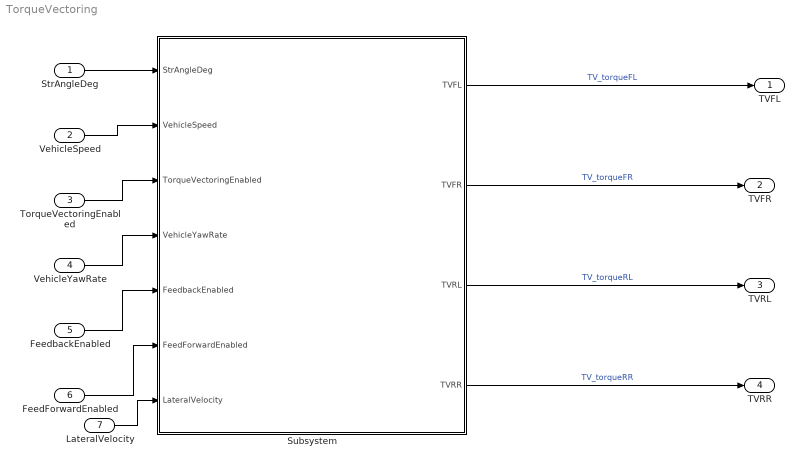
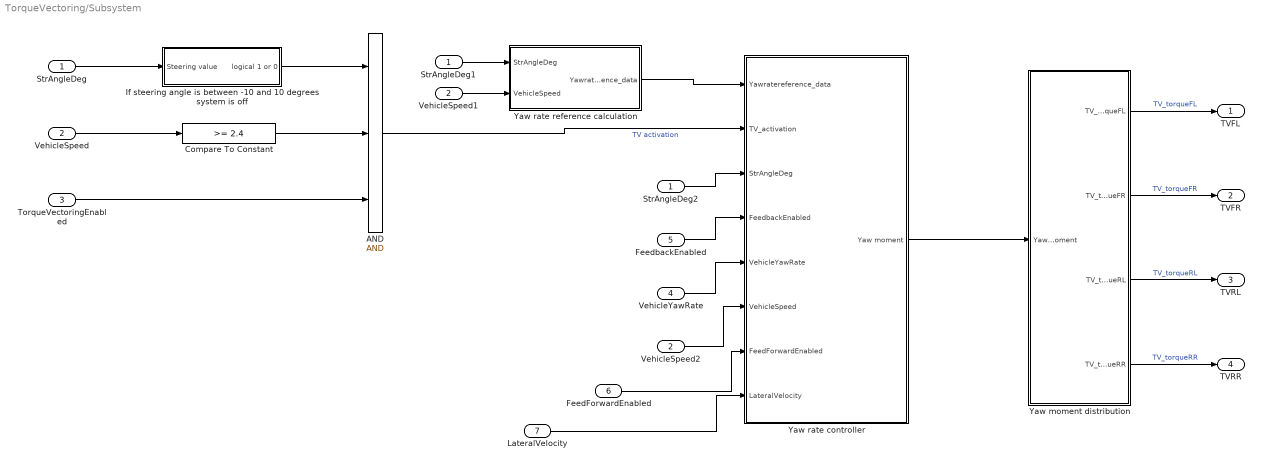
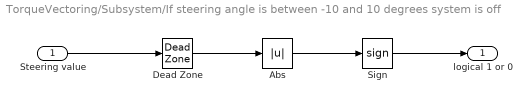
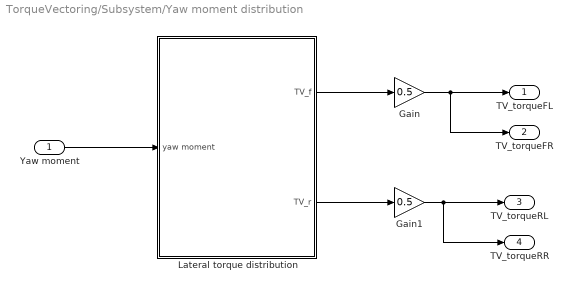
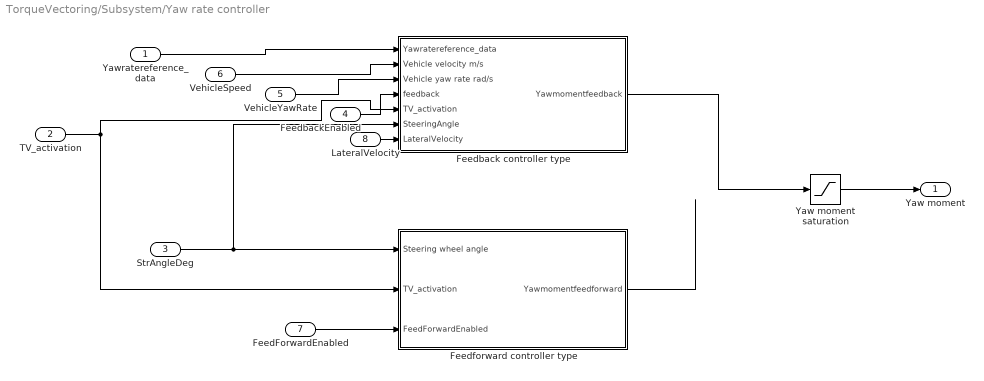
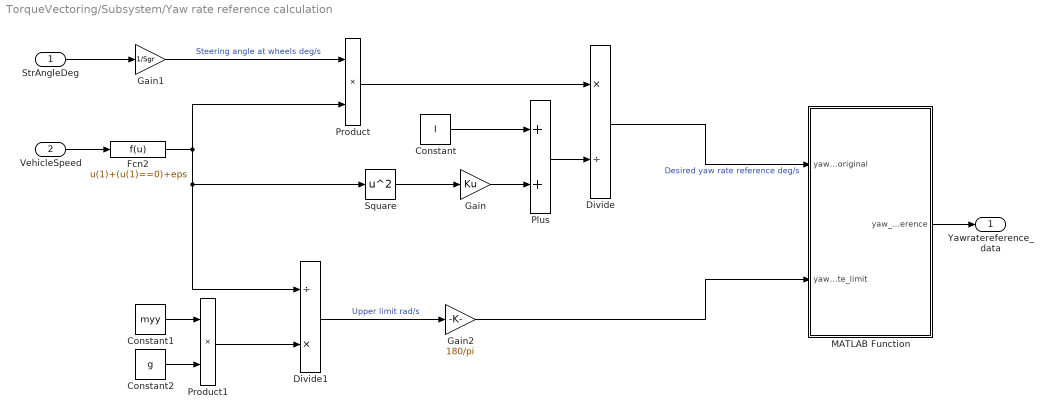
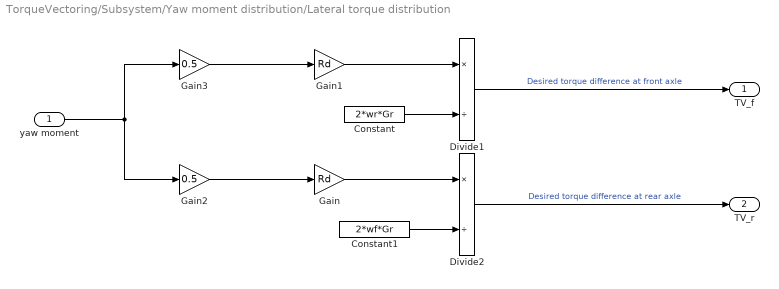
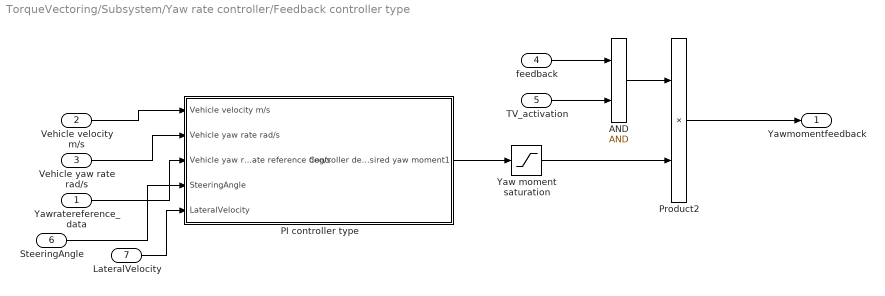
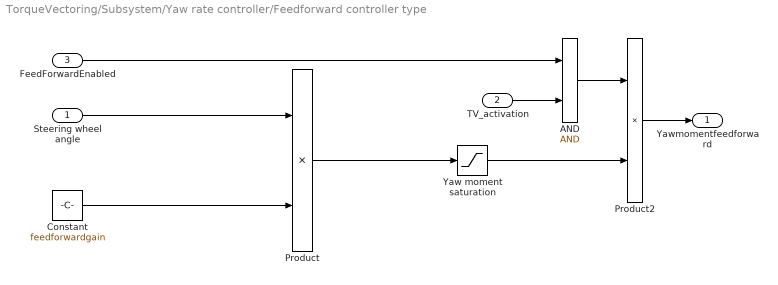
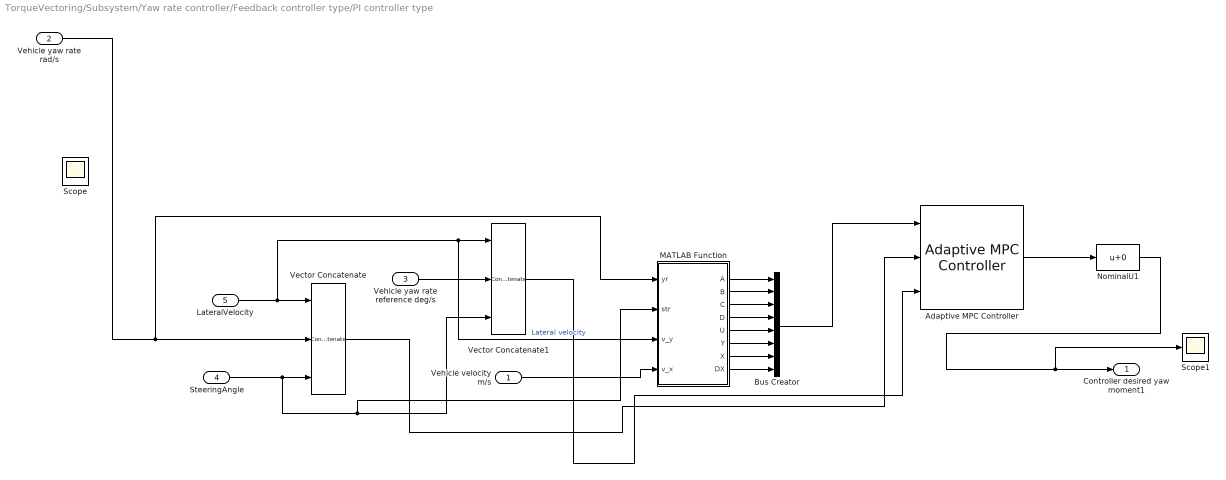
== matlab function TorqueVectoring/Subsystem/Yaw rate controller/Feedback controller type/PI controller type/MATLAB Function ==
function [A,B,C,D,U,Y,X,DX] = fcn(yr,str,v_y,v_x)

Cr = 1
Cf = 1
m = 200
Izz = 100
lf = 0.7650
lr = 0.7650


A = [-(Cr + Cf)/(m), (-v_x^2*m-Cf*lf + Cr*lr)/(m),Cf/m; (lr*Cr-lf*Cf)/(Izz), (lf^2*Cf-lr^2*Cr)/(Izz),lf*Cf/Izz;0,0,0];
B = [0; 1/Izz;0];
C = eye(3);
D = zeros([3,1]);
X = [v_y;yr;str];
Y = [v_y;yr;str];
U = [0];
%A= eye(3)+0.001*A;
%B=0.001*B;
%M=expm([A,B;zeros(1,4)]*0.001);
%A=M(1:3,1:3);
%B=M(1:3,4);
DX = A*X;

== matlab function TorqueVectoring/Subsystem/Yaw rate reference calculation/MATLAB Function ==
function yaw_rate_reference = fcn(yaw_rate_reference_original,yaw_rate_limit)

if abs(yaw_rate_reference_original) < yaw_rate_limit
    yaw_rate_reference = yaw_rate_reference_original ;
else 
    yaw_rate_reference = yaw_rate_limit*sign(yaw_rate_reference_original) ; 
end

/*
 * Sponsored License - for use in support of a program or activity
 * sponsored by MathWorks.  Not for government, commercial or other
 * non-sponsored organizational use.
 *
 * File: TorqueVectoring.c
 *
 * Code generated for Simulink model 'TorqueVectoring'.
 *
 * Model version                  : 1.0
 * Simulink Coder version         : 9.6 (R2021b) 14-May-2021
 * C/C++ source code generated on : Wed Mar 27 18:22:20 2024
 *
 * Target selection: ert.tlc
 * Embedded hardware selection: ARM Compatible->ARM Cortex-M
 * Code generation objectives:
 *    1. Execution efficiency
 *    2. RAM efficiency
 * Validation result: Not run
 */

#include "TorqueVectoring.h"

/* Named constants for MATLAB Function: '<S41>/FixedHorizonOptimizer' */
#define Wdu                            (0.010000000000000002)
#define Wu                             (0.0)
#define ny                             (3)
#define NumBitsPerChar                 8U

/* Block signals and states (default storage) */
DW rtDW;

/* External inputs (root inport signals with default storage) */
ExtU rtU;

/* External outputs (root outports fed by signals with default storage) */
ExtY rtY;

/* Real-time model */
static RT_MODEL rtM_;
RT_MODEL *const rtM = &rtM_;
extern real_T rt_powd_snf(real_T u0, real_T u1);

/* Forward declaration for local functions */
static void WtMult(real_T W, const real_T M[20], real_T WM[20]);
static int32_T xpotrf(real_T b_A[4]);
static void trisolve(const real_T b_A[4], real_T b_B[4]);
static void mpcblock_optimizer(const real_T rseq[30], const real_T vseq[11],
  const real_T x[6], real_T old_u, boolean_T iA, const real_T b_utarget[10],
  real_T b_uoff, const real_T b_A[36], const real_T Bu[66], const real_T Bv[66],
  const real_T b_C[18], const real_T Dv[33], real_T *u, real_T useq[11], real_T *
  status, boolean_T *iAout);
static real_T rtGetInf(void);
static real32_T rtGetInfF(void);
static real_T rtGetMinusInf(void);
static real32_T rtGetMinusInfF(void);
static real_T rtGetNaN(void);
static real32_T rtGetNaNF(void);
extern real_T rtInf;
extern real_T rtMinusInf;
extern real_T rtNaN;
extern real32_T rtInfF;
extern real32_T rtMinusInfF;
extern real32_T rtNaNF;
static void rt_InitInfAndNaN(size_t realSize);
static boolean_T rtIsInf(real_T value);
static boolean_T rtIsInfF(real32_T value);
static boolean_T rtIsNaN(real_T value);
static boolean_T rtIsNaNF(real32_T value);
typedef struct {
  struct {
    uint32_T wordH;
    uint32_T wordL;
  } words;
} BigEndianIEEEDouble;

typedef struct {
  struct {
    uint32_T wordL;
    uint32_T wordH;
  } words;
} LittleEndianIEEEDouble;

typedef struct {
  union {
    real32_T wordLreal;
    uint32_T wordLuint;
  } wordL;
} IEEESingle;

real_T rtInf;
real_T rtMinusInf;
real_T rtNaN;
real32_T rtInfF;
real32_T rtMinusInfF;
real32_T rtNaNF;

/*
 * Initialize rtInf needed by the generated code.
 * Inf is initialized as non-signaling. Assumes IEEE.
 */
static real_T rtGetInf(void)
{
  size_t bitsPerReal = sizeof(real_T) * (NumBitsPerChar);
  real_T inf = 0.0;
  if (bitsPerReal == 32U) {
    inf = rtGetInfF();
  } else {
    union {
      LittleEndianIEEEDouble bitVal;
      real_T fltVal;
    } tmpVal;

    tmpVal.bitVal.words.wordH = 0x7FF00000U;
    tmpVal.bitVal.words.wordL = 0x00000000U;
    inf = tmpVal.fltVal;
  }

  return inf;
}

/*
 * Initialize rtInfF needed by the generated code.
 * Inf is initialized as non-signaling. Assumes IEEE.
 */
static real32_T rtGetInfF(void)
{
  IEEESingle infF;
  infF.wordL.wordLuint = 0x7F800000U;
  return infF.wordL.wordLreal;
}

/*
 * Initialize rtMinusInf needed by the generated code.
 * Inf is initialized as non-signaling. Assumes IEEE.
 */
static real_T rtGetMinusInf(void)
{
  size_t bitsPerReal = sizeof(real_T) * (NumBitsPerChar);
  real_T minf = 0.0;
  if (bitsPerReal == 32U) {
    minf = rtGetMinusInfF();
  } else {
    union {
      LittleEndianIEEEDouble bitVal;
      real_T fltVal;
    } tmpVal;

    tmpVal.bitVal.words.wordH = 0xFFF00000U;
    tmpVal.bitVal.words.wordL = 0x00000000U;
    minf = tmpVal.fltVal;
  }

  return minf;
}

/*
 * Initialize rtMinusInfF needed by the generated code.
 * Inf is initialized as non-signaling. Assumes IEEE.
 */
static real32_T rtGetMinusInfF(void)
{
  IEEESingle minfF;
  minfF.wordL.wordLuint = 0xFF800000U;
  return minfF.wordL.wordLreal;
}

/*
 * Initialize rtNaN needed by the generated code.
 * NaN is initialized as non-signaling. Assumes IEEE.
 */
static real_T rtGetNaN(void)
{
  size_t bitsPerReal = sizeof(real_T) * (NumBitsPerChar);
  real_T nan = 0.0;
  if (bitsPerReal == 32U) {
    nan = rtGetNaNF();
  } else {
    union {
      LittleEndianIEEEDouble bitVal;
      real_T fltVal;
    } tmpVal;

    tmpVal.bitVal.words.wordH = 0xFFF80000U;
    tmpVal.bitVal.words.wordL = 0x00000000U;
    nan = tmpVal.fltVal;
  }

  return nan;
}

/*
 * Initialize rtNaNF needed by the generated code.
 * NaN is initialized as non-signaling. Assumes IEEE.
 */
static real32_T rtGetNaNF(void)
{
  IEEESingle nanF = { { 0.0F } };

  nanF.wordL.wordLuint = 0xFFC00000U;
  return nanF.wordL.wordLreal;
}

/*
 * Initialize the rtInf, rtMinusInf, and rtNaN needed by the
 * generated code. NaN is initialized as non-signaling. Assumes IEEE.
 */
static void rt_InitInfAndNaN(size_t realSize)
{
  (void) (realSize);
  rtNaN = rtGetNaN();
  rtNaNF = rtGetNaNF();
  rtInf = rtGetInf();
  rtInfF = rtGetInfF();
  rtMinusInf = rtGetMinusInf();
  rtMinusInfF = rtGetMinusInfF();
}

/* Test if value is infinite */
static boolean_T rtIsInf(real_T value)
{
  return (boolean_T)((value==rtInf || value==rtMinusInf) ? 1U : 0U);
}

/* Test if single-precision value is infinite */
static boolean_T rtIsInfF(real32_T value)
{
  return (boolean_T)(((value)==rtInfF || (value)==rtMinusInfF) ? 1U : 0U);
}

/* Test if value is not a number */
static boolean_T rtIsNaN(real_T value)
{
  boolean_T result = (boolean_T) 0;
  size_t bitsPerReal = sizeof(real_T) * (NumBitsPerChar);
  if (bitsPerReal == 32U) {
    result = rtIsNaNF((real32_T)value);
  } else {
    union {
      LittleEndianIEEEDouble bitVal;
      real_T fltVal;
    } tmpVal;

    tmpVal.fltVal = value;
    result = (boolean_T)((tmpVal.bitVal.words.wordH & 0x7FF00000) == 0x7FF00000 &&
                         ( (tmpVal.bitVal.words.wordH & 0x000FFFFF) != 0 ||
                          (tmpVal.bitVal.words.wordL != 0) ));
  }

  return result;
}

/* Test if single-precision value is not a number */
static boolean_T rtIsNaNF(real32_T value)
{
  IEEESingle tmp;
  tmp.wordL.wordLreal = value;
  return (boolean_T)( (tmp.wordL.wordLuint & 0x7F800000) == 0x7F800000 &&
                     (tmp.wordL.wordLuint & 0x007FFFFF) != 0 );
}

/* Function for MATLAB Function: '<S41>/FixedHorizonOptimizer' */
static void WtMult(real_T W, const real_T M[20], real_T WM[20])
{
  int32_T i;
  for (i = 0; i < 10; i++) {
    WM[i] = W * M[i];
    WM[i + 10] = M[i + 10] * W;
  }
}

/* Function for MATLAB Function: '<S41>/FixedHorizonOptimizer' */
static int32_T xpotrf(real_T b_A[4])
{
  int32_T info;
  int32_T ix;
  int32_T j;
  boolean_T exitg1;
  info = 0;
  j = 0;
  exitg1 = false;
  while ((!exitg1) && (j < 2)) {
    real_T ssq;
    int32_T idxAjj;
    idxAjj = (j << 1) + j;
    ssq = 0.0;
    if (j >= 1) {
      ssq = b_A[1] * b_A[1];
    }

    ssq = b_A[idxAjj] - ssq;
    if (ssq > 0.0) {
      ssq = sqrt(ssq);
      b_A[idxAjj] = ssq;
      if (j + 1 < 2) {
        ssq = 1.0 / ssq;
        for (ix = idxAjj + 1; ix < idxAjj + 2; ix++) {
          b_A[ix] *= ssq;
        }
      }

      j++;
    } else {
      b_A[idxAjj] = ssq;
      info = j + 1;
      exitg1 = true;
    }
  }

  return info;
}

real_T rt_powd_snf(real_T u0, real_T u1)
{
  real_T y;
  if (rtIsNaN(u0) || rtIsNaN(u1)) {
    y = (rtNaN);
  } else {
    real_T tmp;
    real_T tmp_0;
    tmp = fabs(u0);
    tmp_0 = fabs(u1);
    if (rtIsInf(u1)) {
      if (tmp == 1.0) {
        y = 1.0;
      } else if (tmp > 1.0) {
        if (u1 > 0.0) {
          y = (rtInf);
        } else {
          y = 0.0;
        }
      } else if (u1 > 0.0) {
        y = 0.0;
      } else {
        y = (rtInf);
      }
    } else if (tmp_0 == 0.0) {
      y = 1.0;
    } else if (tmp_0 == 1.0) {
      if (u1 > 0.0) {
        y = u0;
      } else {
        y = 1.0 / u0;
      }
    } else if (u1 == 2.0) {
      y = u0 * u0;
    } else if ((u1 == 0.5) && (u0 >= 0.0)) {
      y = sqrt(u0);
    } else if ((u0 < 0.0) && (u1 > floor(u1))) {
      y = (rtNaN);
    } else {
      y = pow(u0, u1);
    }
  }

  return y;
}

/* Function for MATLAB Function: '<S41>/FixedHorizonOptimizer' */
static void trisolve(const real_T b_A[4], real_T b_B[4])
{
  if (b_B[0] != 0.0) {
    b_B[0] /= b_A[0];
    b_B[1] -= b_B[0] * b_A[1];
  }

  if (b_B[1] != 0.0) {
    b_B[1] /= b_A[3];
  }

  if (b_B[2] != 0.0) {
    b_B[2] /= b_A[0];
    b_B[3] -= b_A[1] * b_B[2];
  }

  if (b_B[3] != 0.0) {
    b_B[3] /= b_A[3];
  }
}

/* Function for MATLAB Function: '<S41>/FixedHorizonOptimizer' */
static void mpcblock_optimizer(const real_T rseq[30], const real_T vseq[11],
  const real_T x[6], real_T old_u, boolean_T iA, const real_T b_utarget[10],
  real_T b_uoff, const real_T b_A[36], const real_T Bu[66], const real_T Bv[66],
  const real_T b_C[18], const real_T Dv[33], real_T *u, real_T useq[11], real_T *
  status, boolean_T *iAout)
{
  real_T c_Hv[330];
  real_T Su[300];
  real_T c_a[180];
  real_T WySuJm[60];
  real_T c_SuJm[60];
  real_T CA_0[33];
  real_T Sum_0[30];
  real_T b_a[30];
  real_T c_Kv[22];
  real_T I2Jm[20];
  real_T WuI2Jm[20];
  real_T tmp[20];
  real_T CA[18];
  real_T CA_1[18];
  real_T c_Kx[12];
  real_T c[4];
  real_T c_Linv[4];
  real_T c_SuJm_0[4];
  real_T Sum[3];
  real_T b_C_0[3];
  real_T b_a_0[2];
  real_T c_Ku1[2];
  real_T varargin_1[2];
  real_T normH;
  real_T s;
  int32_T CA_tmp;
  int32_T c_Hv_tmp;
  int32_T i;
  int32_T i_0;
  int32_T kidx;
  int16_T ixw;
  int8_T a[100];
  int8_T rows[3];
  static const int8_T c_A[100] = { 1, 1, 1, 1, 1, 1, 1, 1, 1, 1, 0, 1, 1, 1, 1,
    1, 1, 1, 1, 1, 0, 0, 1, 1, 1, 1, 1, 1, 1, 1, 0, 0, 0, 1, 1, 1, 1, 1, 1, 1, 0,
    0, 0, 0, 1, 1, 1, 1, 1, 1, 0, 0, 0, 0, 0, 1, 1, 1, 1, 1, 0, 0, 0, 0, 0, 0, 1,
    1, 1, 1, 0, 0, 0, 0, 0, 0, 0, 1, 1, 1, 0, 0, 0, 0, 0, 0, 0, 0, 1, 1, 0, 0, 0,
    0, 0, 0, 0, 0, 0, 1 };

  static const real_T b_b[20] = { 1.0, 0.0, 0.0, 0.0, 0.0, 0.0, 0.0, 0.0, 0.0,
    0.0, 0.0, 1.0, 0.0, 0.0, 0.0, 0.0, 0.0, 0.0, 0.0, 0.0 };

  static const int8_T W[3] = { 1, 0, 0 };

  static const int8_T c_0[20] = { 1, 0, 0, 1, 0, 0, 0, 0, 0, 0, 0, 0, 0, 0, 0, 0,
    0, 0, 0, 0 };

  boolean_T guard1 = false;
  memset(&useq[0], 0, 11U * sizeof(real_T));
  *iAout = false;
  for (i = 0; i < 3; i++) {
    Sum[i] = 0.0;
    b_C_0[i] = 0.0;
    for (c_Hv_tmp = 0; c_Hv_tmp < 6; c_Hv_tmp++) {
      CA_tmp = 3 * c_Hv_tmp + i;
      CA[CA_tmp] = 0.0;
      for (i_0 = 0; i_0 < 6; i_0++) {
        CA[CA_tmp] += b_C[3 * i_0 + i] * b_A[6 * c_Hv_tmp + i_0];
      }

      normH = b_C[CA_tmp];
      Sum[i] += normH * Bu[c_Hv_tmp];
      b_C_0[i] += normH * Bv[c_Hv_tmp];
    }

    c_Hv[i] = b_C_0[i];
    c_Hv[i + 30] = Dv[i];
  }

  for (i = 0; i < 9; i++) {
    c_Hv_tmp = (i + 2) * 30;
    c_Hv[c_Hv_tmp] = 0.0;
    c_Hv[c_Hv_tmp + 1] = 0.0;
    c_Hv[c_Hv_tmp + 2] = 0.0;
  }

  for (i = 0; i < 11; i++) {
    memset(&c_Hv[i * 30 + 3], 0, 27U * sizeof(real_T));
  }

  for (i = 0; i < 6; i++) {
    c_a[30 * i] = CA[3 * i];
    c_a[30 * i + 1] = CA[3 * i + 1];
    c_a[30 * i + 2] = CA[3 * i + 2];
    memset(&c_a[i * 30 + 3], 0, 27U * sizeof(real_T));
  }

  b_a[0] = Sum[0];
  b_a[1] = Sum[1];
  b_a[2] = Sum[2];
  memset(&b_a[3], 0, 27U * sizeof(real_T));
  Su[0] = Sum[0];
  Su[1] = Sum[1];
  Su[2] = Sum[2];
  for (i = 0; i < 9; i++) {
    c_Hv_tmp = (i + 1) * 30;
    Su[c_Hv_tmp] = 0.0;
    Su[c_Hv_tmp + 1] = 0.0;
    Su[c_Hv_tmp + 2] = 0.0;
  }

  for (i = 0; i < 10; i++) {
    memset(&Su[i * 30 + 3], 0, 27U * sizeof(real_T));
  }

  for (kidx = 0; kidx < 9; kidx++) {
    int8_T kidx_0;
    kidx_0 = (int8_T)((kidx + 1) * 3 + 1);
    for (i = 0; i < 3; i++) {
      rows[i] = (int8_T)(i + kidx_0);
      normH = 0.0;
      for (c_Hv_tmp = 0; c_Hv_tmp < 6; c_Hv_tmp++) {
        normH += CA[3 * c_Hv_tmp + i] * Bu[c_Hv_tmp];
      }

      Sum[i] += normH;
    }

    b_a[rows[0] - 1] = Sum[0];
    Sum_0[0] = Sum[0];
    b_a[rows[1] - 1] = Sum[1];
    Sum_0[1] = Sum[1];
    b_a[rows[2] - 1] = Sum[2];
    Sum_0[2] = Sum[2];
    for (i = 0; i < 9; i++) {
      c_Hv_tmp = (i + 1) * 3;
      Sum_0[c_Hv_tmp] = Su[(30 * i + rows[0]) - 4];
      Sum_0[c_Hv_tmp + 1] = Su[(30 * i + rows[1]) - 4];
      Sum_0[c_Hv_tmp + 2] = Su[(30 * i + rows[2]) - 4];
    }

    for (i = 0; i < 10; i++) {
      Su[(rows[0] + 30 * i) - 1] = Sum_0[3 * i];
      Su[(rows[1] + 30 * i) - 1] = Sum_0[3 * i + 1];
      Su[(rows[2] + 30 * i) - 1] = Sum_0[3 * i + 2];
    }

    for (i = 0; i < 3; i++) {
      b_C_0[i] = 0.0;
      for (c_Hv_tmp = 0; c_Hv_tmp < 6; c_Hv_tmp++) {
        b_C_0[i] += CA[3 * c_Hv_tmp + i] * Bv[c_Hv_tmp];
      }

      CA_0[i] = b_C_0[i];
    }

    for (i = 0; i < 10; i++) {
      CA_tmp = (i + 1) * 3;
      CA_0[CA_tmp] = c_Hv[(30 * i + rows[0]) - 4];
      CA_0[CA_tmp + 1] = c_Hv[(30 * i + rows[1]) - 4];
      CA_0[CA_tmp + 2] = c_Hv[(30 * i + rows[2]) - 4];
    }

    for (i = 0; i < 11; i++) {
      c_Hv[(rows[0] + 30 * i) - 1] = CA_0[3 * i];
      c_Hv[(rows[1] + 30 * i) - 1] = CA_0[3 * i + 1];
      c_Hv[(rows[2] + 30 * i) - 1] = CA_0[3 * i + 2];
    }

    for (i = 0; i < 3; i++) {
      for (c_Hv_tmp = 0; c_Hv_tmp < 6; c_Hv_tmp++) {
        CA_tmp = 3 * c_Hv_tmp + i;
        CA_1[CA_tmp] = 0.0;
        for (i_0 = 0; i_0 < 6; i_0++) {
          CA_1[CA_tmp] += CA[3 * i_0 + i] * b_A[6 * c_Hv_tmp + i_0];
        }
      }
    }

    memcpy(&CA[0], &CA_1[0], 18U * sizeof(real_T));
    for (i = 0; i < 6; i++) {
      c_a[(rows[0] + 30 * i) - 1] = CA[3 * i];
      c_a[(rows[1] + 30 * i) - 1] = CA[3 * i + 1];
      c_a[(rows[2] + 30 * i) - 1] = CA[3 * i + 2];
    }
  }

  for (i = 0; i < 2; i++) {
    for (c_Hv_tmp = 0; c_Hv_tmp < 30; c_Hv_tmp++) {
      kidx = 30 * i + c_Hv_tmp;
      c_SuJm[kidx] = 0.0;
      for (i_0 = 0; i_0 < 10; i_0++) {
        c_SuJm[kidx] += Su[30 * i_0 + c_Hv_tmp] * b_b[10 * i + i_0];
      }
    }
  }

  kidx = -1;
  for (i = 0; i < 10; i++) {
    for (c_Hv_tmp = 0; c_Hv_tmp < 10; c_Hv_tmp++) {
      a[(kidx + c_Hv_tmp) + 1] = c_A[10 * i + c_Hv_tmp];
    }

    kidx += 10;
  }

  for (i = 0; i < 2; i++) {
    for (c_Hv_tmp = 0; c_Hv_tmp < 10; c_Hv_tmp++) {
      kidx = 10 * i + c_Hv_tmp;
      I2Jm[kidx] = 0.0;
      for (i_0 = 0; i_0 < 10; i_0++) {
        I2Jm[kidx] += (real_T)a[10 * i_0 + c_Hv_tmp] * b_b[10 * i + i_0];
      }
    }
  }

  ixw = 1;
  for (kidx = 0; kidx < 30; kidx++) {
    i = W[ixw - 1];
    WySuJm[kidx] = (real_T)i * c_SuJm[kidx];
    WySuJm[kidx + 30] = c_SuJm[kidx + 30] * (real_T)i;
    ixw++;
    if (ixw > 3) {
      ixw = 1;
    }
  }

  WtMult(Wu, I2Jm, WuI2Jm);
  WtMult(Wdu, b_b, tmp);
  for (i = 0; i < 2; i++) {
    for (c_Hv_tmp = 0; c_Hv_tmp < 2; c_Hv_tmp++) {
      kidx = (c_Hv_tmp << 1) + i;
      c_SuJm_0[kidx] = 0.0;
      for (i_0 = 0; i_0 < 30; i_0++) {
        c_SuJm_0[kidx] += c_SuJm[30 * i + i_0] * WySuJm[30 * c_Hv_tmp + i_0];
      }

      c[kidx] = 0.0;
      normH = 0.0;
      for (i_0 = 0; i_0 < 10; i_0++) {
        CA_tmp = 10 * c_Hv_tmp + i_0;
        normH += I2Jm[10 * i + i_0] * WuI2Jm[CA_tmp];
        c[kidx] += (real_T)c_0[(i_0 << 1) + i] * tmp[CA_tmp];
      }

      c_Linv[kidx] = (c_SuJm_0[kidx] + c[kidx]) + normH;
    }

    b_a_0[i] = 0.0;
    for (c_Hv_tmp = 0; c_Hv_tmp < 30; c_Hv_tmp++) {
      b_a_0[i] += WySuJm[30 * i + c_Hv_tmp] * b_a[c_Hv_tmp];
    }

    varargin_1[i] = 0.0;
    for (c_Hv_tmp = 0; c_Hv_tmp < 10; c_Hv_tmp++) {
      varargin_1[i] += WuI2Jm[10 * i + c_Hv_tmp];
    }

    c_Ku1[i] = b_a_0[i] + varargin_1[i];
  }

  for (i = 0; i < 20; i++) {
    WuI2Jm[i] = -WuI2Jm[i];
  }

  for (i = 0; i < 6; i++) {
    for (c_Hv_tmp = 0; c_Hv_tmp < 2; c_Hv_tmp++) {
      kidx = 6 * c_Hv_tmp + i;
      c_Kx[kidx] = 0.0;
      for (i_0 = 0; i_0 < 30; i_0++) {
        c_Kx[kidx] += c_a[30 * i + i_0] * WySuJm[30 * c_Hv_tmp + i_0];
      }
    }
  }

  for (i = 0; i < 11; i++) {
    for (c_Hv_tmp = 0; c_Hv_tmp < 2; c_Hv_tmp++) {
      kidx = 11 * c_Hv_tmp + i;
      c_Kv[kidx] = 0.0;
      for (i_0 = 0; i_0 < 30; i_0++) {
        c_Kv[kidx] += c_Hv[30 * i + i_0] * WySuJm[30 * c_Hv_tmp + i_0];
      }
    }
  }

  for (i = 0; i < 60; i++) {
    WySuJm[i] = -WySuJm[i];
  }

  kidx = 0;
  c_SuJm_0[0] = c_Linv[0];
  c_SuJm_0[1] = c_Linv[1];
  c_SuJm_0[2] = c_Linv[2];
  c_SuJm_0[3] = c_Linv[3];
  i = xpotrf(c_SuJm_0);
  guard1 = false;
  if (i == 0) {
    if (c_SuJm_0[0] > c_SuJm_0[3]) {
      normH = c_SuJm_0[3];
    } else if (rtIsNaN(c_SuJm_0[0])) {
      if (!rtIsNaN(c_SuJm_0[3])) {
        normH = c_SuJm_0[3];
      } else {
        normH = c_SuJm_0[0];
      }
    } else {
      normH = c_SuJm_0[0];
    }

    if (normH > 1.4901161193847656E-7) {
    } else {
      guard1 = true;
    }
  } else {
    guard1 = true;
  }

  if (guard1) {
    boolean_T exitg2;
    normH = 0.0;
    i = 0;
    exitg2 = false;
    while ((!exitg2) && (i < 2)) {
      s = fabs(c_Linv[i + 2]) + fabs(c_Linv[i]);
      if (rtIsNaN(s)) {
        normH = (rtNaN);
        exitg2 = true;
      } else {
        if (s > normH) {
          normH = s;
        }

        i++;
      }
    }

    if (normH >= 1.0E+10) {
      kidx = 2;
    } else {
      boolean_T exitg1;
      i = 0;
      exitg1 = false;
      while ((!exitg1) && (i <= 4)) {
        boolean_T guard2 = false;
        normH = rt_powd_snf(10.0, (real_T)i) * 1.4901161193847656E-7;
        c_Linv[0] += normH;
        c_SuJm_0[0] = c_Linv[0];
        c_SuJm_0[1] = c_Linv[1];
        c_SuJm_0[2] = c_Linv[2];
        c_Linv[3] += normH;
        c_SuJm_0[3] = c_Linv[3];
        kidx = xpotrf(c_SuJm_0);
        guard2 = false;
        if (kidx == 0) {
          if (c_SuJm_0[0] > c_SuJm_0[3]) {
            normH = c_SuJm_0[3];
          } else if (rtIsNaN(c_SuJm_0[0])) {
            if (!rtIsNaN(c_SuJm_0[3])) {
              normH = c_SuJm_0[3];
            } else {
              normH = c_SuJm_0[0];
            }
          } else {
            normH = c_SuJm_0[0];
          }

          if (normH > 1.4901161193847656E-7) {
            kidx = 1;
            exitg1 = true;
          } else {
            guard2 = true;
          }
        } else {
          guard2 = true;
        }

        if (guard2) {
          kidx = 3;
          i++;
        }
      }
    }
  }

  if (kidx > 1) {
    *u = old_u + b_uoff;
    for (i = 0; i < 11; i++) {
      useq[i] = *u;
    }

    *status = -2.0;
  } else {
    c_Linv[0] = 1.0;
    c_Linv[1] = 0.0;
    c_Linv[2] = 0.0;
    c_Linv[3] = 1.0;
    trisolve(c_SuJm_0, c_Linv);
    *iAout = iA;
    for (kidx = 0; kidx < 2; kidx++) {
      real_T WuI2Jm_0;
      real_T c_Kv_0;
      c_SuJm_0[kidx] = 0.0;
      i = kidx << 1;
      normH = c_Linv[i];
      c_SuJm_0[kidx] += normH * c_Linv[0];
      s = c_Linv[i + 1];
      c_SuJm_0[kidx] += s * c_Linv[1];
      c_SuJm_0[kidx + 2] = 0.0;
      c_SuJm_0[kidx + 2] += normH * c_Linv[2];
      c_SuJm_0[kidx + 2] += s * c_Linv[3];
      normH = 0.0;
      for (i = 0; i < 6; i++) {
        normH += c_Kx[6 * kidx + i] * x[i];
      }

      s = 0.0;
      for (i = 0; i < 30; i++) {
        s += WySuJm[30 * kidx + i] * rseq[i];
      }

      c_Kv_0 = 0.0;
      for (i = 0; i < 11; i++) {
        c_Kv_0 += c_Kv[11 * kidx + i] * vseq[i];
      }

      WuI2Jm_0 = 0.0;
      for (i = 0; i < 10; i++) {
        WuI2Jm_0 += WuI2Jm[10 * kidx + i] * b_utarget[i];
      }

      b_a_0[kidx] = (((normH + s) + c_Ku1[kidx] * old_u) + c_Kv_0) + WuI2Jm_0;
      varargin_1[kidx] = 0.0;
    }

    varargin_1[0] -= c_SuJm_0[0] * b_a_0[0];
    *status = 1.0;
    *u = ((varargin_1[0] - b_a_0[1] * c_SuJm_0[2]) + old_u) + b_uoff;
  }
}

/* Model step function */
void TorqueVectoring_step(void)
{
  real_T CovMat[81];
  real_T Bu[66];
  real_T Bv[66];
  real_T b_tmp[63];
  real_T b_B[48];
  real_T L_tmp[36];
  real_T L_tmp_0[36];
  real_T L_tmp_1[36];
  real_T b_A[36];
  real_T Dv[33];
  real_T rseq[30];
  real_T Cm_0[18];
  real_T L[18];
  real_T b_C[18];
  real_T tmp[18];
  real_T tmp_0[18];
  real_T rtb_useq[11];
  real_T vseq[11];
  real_T b_utarget[10];
  real_T rtb_A[9];
  real_T rtb_C[9];
  real_T b_xoff[6];
  real_T xk[6];
  real_T xk_0[6];
  real_T Y[3];
  real_T rtb_VectorConcatenate[3];
  real_T rtb_VectorConcatenate1[3];
  real_T rtb_X[3];
  real_T rtb_C_tmp_0;
  real_T rtb_C_tmp_1;
  real_T rtb_C_tmp_2;
  real_T rtb_C_tmp_3;
  real_T rtb_Desiredyawratereferencedegs;
  real_T rtb_Gain_e;
  int32_T i;
  int32_T r1;
  int32_T r3;
  int32_T rtb_C_tmp;
  int32_T rtemp;
  int8_T Cm[198];
  int8_T c_B[9];
  int8_T UnknownIn[7];
  static const real_T c[36] = { -0.01, 0.0, 0.0, 0.0, 0.0, 0.0, -100.0, 0.0, 0.0,
    0.0, 0.0, 0.0, 0.005, 0.0076500000000000005, 0.0, 0.0, 0.0, 0.0, 0.0, 0.0,
    0.0, 1.0, 0.0, 0.0, 0.0, 0.0, 0.0, 0.0, 1.0, 0.0, 0.0, 0.0, 0.0, 0.0, 0.0,
    1.0 };

  static const real_T d[48] = { 0.0, 0.01, 0.0, 0.0, 0.0, 0.0, 0.0, 0.0, 0.0,
    0.0, 0.0, 0.0, 0.0, 0.0, 0.0, 0.001, 0.0, 0.0, 0.0, 0.0, 0.0, 0.0, 0.001,
    0.0, 0.0, 0.0, 0.0, 0.0, 0.0, 0.001, 0.0, 0.0, 0.0, 0.0, 0.0, 0.0, 0.0, 0.0,
    0.0, 0.0, 0.0, 0.0, 0.0, 0.0, 0.0, 0.0, 0.0, 0.0 };

  static const int8_T e[18] = { 1, 0, 0, 0, 1, 0, 0, 0, 1, 1, 0, 0, 0, 1, 0, 0,
    0, 1 };

  static const int8_T b_D[24] = { 0, 0, 0, 0, 0, 0, 0, 0, 0, 0, 0, 0, 0, 0, 0, 1,
    0, 0, 0, 1, 0, 0, 0, 1 };

  int32_T rtb_C_tmp_tmp;
  boolean_T tmp_1;

  /* SignalConversion generated from: '<S10>/Vector Concatenate' incorporates:
   *  Inport: '<Root>/LateralVelocity'
   */
  rtb_VectorConcatenate[0] = rtU.LateralVelocity;

  /* SignalConversion generated from: '<S10>/Vector Concatenate' incorporates:
   *  Inport: '<Root>/VehicleYawRate'
   */
  rtb_VectorConcatenate[1] = rtU.VehicleYawRate;

  /* SignalConversion generated from: '<S10>/Vector Concatenate' incorporates:
   *  Inport: '<Root>/StrAngleDeg'
   */
  rtb_VectorConcatenate[2] = rtU.StrAngleDeg;

  /* Fcn: '<S6>/Fcn2' incorporates:
   *  Inport: '<Root>/VehicleSpeed'
   */
  rtb_Gain_e = ((real_T)(rtU.VehicleSpeed == 0.0) + rtU.VehicleSpeed) +
    2.2204460492503131e-16;

  /* Product: '<S6>/Divide' incorporates:
   *  Constant: '<S6>/Constant'
   *  Gain: '<S6>/Gain'
   *  Gain: '<S6>/Gain1'
   *  Inport: '<Root>/StrAngleDeg'
   *  Math: '<S6>/Square'
   *  Product: '<S6>/Product'
   *  Sum: '<S6>/Plus'
   */
  rtb_Desiredyawratereferencedegs = 0.2 * rtU.StrAngleDeg * rtb_Gain_e /
    (rtb_Gain_e * rtb_Gain_e * 0.0 + 1.53);

  /* Gain: '<S6>/Gain2' incorporates:
   *  Product: '<S6>/Divide1'
   */
  rtb_Gain_e = 1.0 / rtb_Gain_e * 19.62 * 57.295779513082323;

  /* MATLAB Function: '<S6>/MATLAB Function' */
  if (fabs(rtb_Desiredyawratereferencedegs) < rtb_Gain_e) {
    rtb_VectorConcatenate1[1] = rtb_Desiredyawratereferencedegs;
  } else {
    if (rtb_Desiredyawratereferencedegs < 0.0) {
      rtb_Desiredyawratereferencedegs = -1.0;
    } else if (rtb_Desiredyawratereferencedegs > 0.0) {
      rtb_Desiredyawratereferencedegs = 1.0;
    } else if (rtb_Desiredyawratereferencedegs == 0.0) {
      rtb_Desiredyawratereferencedegs = 0.0;
    } else {
      rtb_Desiredyawratereferencedegs = (rtNaN);
    }

    rtb_VectorConcatenate1[1] = rtb_Gain_e * rtb_Desiredyawratereferencedegs;
  }

  /* End of MATLAB Function: '<S6>/MATLAB Function' */

  /* MATLAB Function: '<S10>/MATLAB Function' incorporates:
   *  Inport: '<Root>/LateralVelocity'
   *  Inport: '<Root>/StrAngleDeg'
   *  Inport: '<Root>/VehicleSpeed'
   *  Inport: '<Root>/VehicleYawRate'
   */
  rtb_A[0] = -0.01;
  rtb_A[3] = ((-(rtU.VehicleSpeed * rtU.VehicleSpeed) * 200.0 - 0.765) + 0.765) /
    200.0;
  rtb_A[6] = 0.005;
  rtb_A[1] = 0.0;
  rtb_A[2] = 0.0;
  rtb_A[4] = 0.0;
  rtb_A[5] = 0.0;
  rtb_A[7] = 0.0076500000000000005;
  rtb_A[8] = 0.0;
  memset(&rtb_C[0], 0, 9U * sizeof(real_T));
  rtb_X[0] = rtU.LateralVelocity;
  rtb_X[1] = rtU.VehicleYawRate;
  rtb_X[2] = rtU.StrAngleDeg;
  rtb_C[0] = 1.0;

  /* MATLAB Function: '<S41>/FixedHorizonOptimizer' incorporates:
   *  MATLAB Function: '<S10>/MATLAB Function'
   */
  Y[0] = 0.0;

  /* MATLAB Function: '<S10>/MATLAB Function' */
  rtb_C[4] = 1.0;

  /* MATLAB Function: '<S41>/FixedHorizonOptimizer' incorporates:
   *  MATLAB Function: '<S10>/MATLAB Function'
   */
  Y[1] = 0.01;

  /* MATLAB Function: '<S10>/MATLAB Function' */
  rtb_C[8] = 1.0;

  /* MATLAB Function: '<S41>/FixedHorizonOptimizer' incorporates:
   *  Inport: '<Root>/LateralVelocity'
   *  Inport: '<Root>/StrAngleDeg'
   *  Inport: '<Root>/VehicleYawRate'
   *  MATLAB Function: '<S10>/MATLAB Function'
   *  Memory: '<S13>/LastPcov'
   *  Memory: '<S13>/last_x'
   */
  Y[2] = 0.0;
  memset(&Bu[0], 0, 66U * sizeof(real_T));
  memset(&Bv[0], 0, 66U * sizeof(real_T));
  memset(&Dv[0], 0, 33U * sizeof(real_T));
  memset(&Cm[0], 0, 198U * sizeof(int8_T));
  memcpy(&b_A[0], &c[0], 36U * sizeof(real_T));
  memcpy(&b_B[0], &d[0], 48U * sizeof(real_T));
  for (i = 0; i < 18; i++) {
    b_C[i] = e[i];
  }

  for (i = 0; i < 3; i++) {
    b_B[i] = Y[i];
    b_C[3 * i] = rtb_C[3 * i];
    b_A[6 * i] = rtb_A[3 * i];
    r3 = 3 * i + 1;
    b_C[r3] = rtb_C[r3];
    b_A[6 * i + 1] = rtb_A[r3];
    r3 = 3 * i + 2;
    b_C[r3] = rtb_C[r3];
    b_A[6 * i + 2] = rtb_A[r3];
  }

  for (i = 0; i < 6; i++) {
    Bu[i] = b_B[i];
    Bv[i] = b_B[i + 6];
    Cm[3 * i] = (int8_T)b_C[3 * i];
    r3 = 3 * i + 1;
    Cm[r3] = (int8_T)b_C[r3];
    r3 = 3 * i + 2;
    Cm[r3] = (int8_T)b_C[r3];
  }

  for (i = 0; i < 7; i++) {
    UnknownIn[i] = 0;
  }

  UnknownIn[0] = 1;
  for (i = 0; i < 6; i++) {
    UnknownIn[i + 1] = (int8_T)(i + 3);
  }

  for (i = 0; i < 7; i++) {
    for (r3 = 0; r3 < 6; r3++) {
      b_tmp[r3 + 9 * i] = b_B[(UnknownIn[i] - 1) * 6 + r3];
    }

    r3 = (UnknownIn[i] - 1) * 3;
    b_tmp[9 * i + 6] = b_D[r3];
    b_tmp[9 * i + 7] = b_D[r3 + 1];
    b_tmp[9 * i + 8] = b_D[r3 + 2];
  }

  for (i = 0; i < 9; i++) {
    for (r3 = 0; r3 < 9; r3++) {
      rtemp = 9 * r3 + i;
      CovMat[rtemp] = 0.0;
      for (r1 = 0; r1 < 7; r1++) {
        CovMat[rtemp] += b_tmp[9 * r1 + i] * b_tmp[9 * r1 + r3];
      }
    }
  }

  Dv[0] = 0.0;
  Dv[1] = 0.0;
  Dv[2] = 0.0;
  for (i = 0; i < 6; i++) {
    b_xoff[i] = 0.0;
  }

  Y[0] = rtU.LateralVelocity;
  Y[1] = rtU.VehicleYawRate;
  Y[2] = rtU.StrAngleDeg;
  memset(&b_utarget[0], 0, 10U * sizeof(real_T));
  for (i = 0; i < 3; i++) {
    b_xoff[i] = rtb_X[i];
    Bv[i] = (rtb_A[i + 3] * rtU.VehicleYawRate + rtb_A[i] * rtU.LateralVelocity)
      + rtb_A[i + 6] * rtU.StrAngleDeg;
  }

  for (r1 = 0; r1 < 11; r1++) {
    vseq[r1] = 1.0;
  }

  for (r1 = 0; r1 < 10; r1++) {
    rseq[r1 * ny] = rtU.LateralVelocity - rtU.LateralVelocity;
    rseq[r1 * ny + 1] = rtb_VectorConcatenate1[1] - rtU.VehicleYawRate;
    rseq[r1 * ny + 2] = rtU.StrAngleDeg - rtU.StrAngleDeg;
  }

  for (i = 0; i < 9; i++) {
    c_B[i] = 0;
  }

  for (r1 = 0; r1 < 3; r1++) {
    c_B[r1 + 3 * r1] = 1;
    for (i = 0; i < 6; i++) {
      rtemp = 3 * i + r1;
      L[i + 6 * r1] = Cm[rtemp];
      Cm_0[rtemp] = 0.0;
      for (r3 = 0; r3 < 6; r3++) {
        Cm_0[rtemp] += (real_T)Cm[3 * r3 + r1] * rtDW.LastPcov_PreviousInput[6 *
          i + r3];
      }
    }
  }

  for (i = 0; i < 3; i++) {
    for (r3 = 0; r3 < 3; r3++) {
      rtb_Gain_e = 0.0;
      for (r1 = 0; r1 < 6; r1++) {
        rtb_Gain_e += Cm_0[3 * r1 + i] * L[6 * r3 + r1];
      }

      rtb_A[i + 3 * r3] = CovMat[((r3 + 6) * 9 + i) + 6] + rtb_Gain_e;
    }
  }

  r1 = 0;
  i = 1;
  r3 = 2;
  rtb_Gain_e = fabs(rtb_A[0]);
  rtb_Desiredyawratereferencedegs = fabs(rtb_A[1]);
  if (rtb_Desiredyawratereferencedegs > rtb_Gain_e) {
    rtb_Gain_e = rtb_Desiredyawratereferencedegs;
    r1 = 1;
    i = 0;
  }

  if (fabs(rtb_A[2]) > rtb_Gain_e) {
    r1 = 2;
    i = 1;
    r3 = 0;
  }

  rtb_A[i] /= rtb_A[r1];
  rtb_A[r3] /= rtb_A[r1];
  rtb_A[i + 3] -= rtb_A[r1 + 3] * rtb_A[i];
  rtb_A[r3 + 3] -= rtb_A[r1 + 3] * rtb_A[r3];
  rtb_A[i + 6] -= rtb_A[r1 + 6] * rtb_A[i];
  rtb_A[r3 + 6] -= rtb_A[r1 + 6] * rtb_A[r3];
  if (fabs(rtb_A[r3 + 3]) > fabs(rtb_A[i + 3])) {
    rtemp = i;
    i = r3;
    r3 = rtemp;
  }

  rtb_A[r3 + 3] /= rtb_A[i + 3];
  rtb_A[r3 + 6] -= rtb_A[r3 + 3] * rtb_A[i + 6];
  rtb_C[3 * r1] = (real_T)c_B[0] / rtb_A[r1];
  rtb_Desiredyawratereferencedegs = rtb_A[r1 + 3];
  rtb_C[3 * i] = (real_T)c_B[3] - rtb_C[3 * r1] *
    rtb_Desiredyawratereferencedegs;
  rtb_Gain_e = rtb_A[r1 + 6];
  rtb_C[3 * r3] = (real_T)c_B[6] - rtb_C[3 * r1] * rtb_Gain_e;
  rtb_C_tmp_0 = rtb_A[i + 3];
  rtb_C[3 * i] /= rtb_C_tmp_0;
  rtb_C_tmp_1 = rtb_A[i + 6];
  rtb_C[3 * r3] -= rtb_C[3 * i] * rtb_C_tmp_1;
  rtb_C_tmp_2 = rtb_A[r3 + 6];
  rtb_C[3 * r3] /= rtb_C_tmp_2;
  rtb_C_tmp_3 = rtb_A[r3 + 3];
  rtb_C[3 * i] -= rtb_C[3 * r3] * rtb_C_tmp_3;
  rtb_C[3 * r1] -= rtb_C[3 * r3] * rtb_A[r3];
  rtb_C[3 * r1] -= rtb_C[3 * i] * rtb_A[i];
  rtemp = 3 * r1 + 1;
  rtb_C[rtemp] = (real_T)c_B[1] / rtb_A[r1];
  rtb_C_tmp = 3 * i + 1;
  rtb_C[rtb_C_tmp] = (real_T)c_B[4] - rtb_C[rtemp] *
    rtb_Desiredyawratereferencedegs;
  rtb_C_tmp_tmp = 3 * r3 + 1;
  rtb_C[rtb_C_tmp_tmp] = (real_T)c_B[7] - rtb_C[rtemp] * rtb_Gain_e;
  rtb_C[rtb_C_tmp] /= rtb_C_tmp_0;
  rtb_C[rtb_C_tmp_tmp] -= rtb_C[rtb_C_tmp] * rtb_C_tmp_1;
  rtb_C[rtb_C_tmp_tmp] /= rtb_C_tmp_2;
  rtb_C[rtb_C_tmp] -= rtb_C[rtb_C_tmp_tmp] * rtb_C_tmp_3;
  rtb_C[rtemp] -= rtb_C[rtb_C_tmp_tmp] * rtb_A[r3];
  rtb_C[rtemp] -= rtb_C[rtb_C_tmp] * rtb_A[i];
  rtemp = 3 * r1 + 2;
  rtb_C[rtemp] = (real_T)c_B[2] / rtb_A[r1];
  rtb_C_tmp = 3 * i + 2;
  rtb_C[rtb_C_tmp] = (real_T)c_B[5] - rtb_C[rtemp] *
    rtb_Desiredyawratereferencedegs;
  rtb_C_tmp_tmp = 3 * r3 + 2;
  rtb_C[rtb_C_tmp_tmp] = (real_T)c_B[8] - rtb_C[rtemp] * rtb_Gain_e;
  rtb_C[rtb_C_tmp] /= rtb_C_tmp_0;
  rtb_C[rtb_C_tmp_tmp] -= rtb_C[rtb_C_tmp] * rtb_C_tmp_1;
  rtb_C[rtb_C_tmp_tmp] /= rtb_C_tmp_2;
  rtb_C[rtb_C_tmp] -= rtb_C[rtb_C_tmp_tmp] * rtb_C_tmp_3;
  rtb_C[rtemp] -= rtb_C[rtb_C_tmp_tmp] * rtb_A[r3];
  rtb_C[rtemp] -= rtb_C[rtb_C_tmp] * rtb_A[i];
  for (i = 0; i < 6; i++) {
    for (r3 = 0; r3 < 6; r3++) {
      rtemp = 6 * r3 + i;
      L_tmp[rtemp] = 0.0;
      for (r1 = 0; r1 < 6; r1++) {
        L_tmp[rtemp] += b_A[6 * r1 + i] * rtDW.LastPcov_PreviousInput[6 * r3 +
          r1];
      }
    }

    for (r3 = 0; r3 < 3; r3++) {
      rtb_Gain_e = 0.0;
      for (r1 = 0; r1 < 6; r1++) {
        rtb_Gain_e += L_tmp[6 * r1 + i] * L[6 * r3 + r1];
      }

      Cm_0[i + 6 * r3] = CovMat[(r3 + 6) * 9 + i] + rtb_Gain_e;
    }
  }

  for (i = 0; i < 6; i++) {
    for (r3 = 0; r3 < 3; r3++) {
      rtemp = 6 * r3 + i;
      L[rtemp] = 0.0;
      L[rtemp] += rtb_C[3 * r3] * Cm_0[i];
      L[rtemp] += rtb_C[3 * r3 + 1] * Cm_0[i + 6];
      L[rtemp] += rtb_C[3 * r3 + 2] * Cm_0[i + 12];
    }

    xk[i] = rtDW.last_x_PreviousInput[i] - b_xoff[i];
  }

  for (i = 0; i < 3; i++) {
    rtb_Gain_e = 0.0;
    for (r3 = 0; r3 < 6; r3++) {
      rtb_Gain_e += (real_T)Cm[3 * r3 + i] * xk[r3];
    }

    rtb_VectorConcatenate1[i] = (rtb_VectorConcatenate[i] - Y[i]) - rtb_Gain_e;
  }

  for (i = 0; i < 6; i++) {
    for (r3 = 0; r3 < 3; r3++) {
      r1 = 6 * r3 + i;
      tmp[r1] = 0.0;
      for (rtemp = 0; rtemp < 6; rtemp++) {
        tmp[r1] += rtDW.LastPcov_PreviousInput[6 * rtemp + i] * (real_T)Cm[3 *
          rtemp + r3];
      }
    }

    rtb_Gain_e = 0.0;
    for (r3 = 0; r3 < 3; r3++) {
      r1 = 6 * r3 + i;
      tmp_0[r1] = 0.0;
      tmp_0[r1] += rtb_C[3 * r3] * tmp[i];
      tmp_0[r1] += rtb_C[3 * r3 + 1] * tmp[i + 6];
      tmp_0[r1] += rtb_C[3 * r3 + 2] * tmp[i + 12];
      rtb_Gain_e += tmp_0[r1] * rtb_VectorConcatenate1[r3];
    }

    xk_0[i] = xk[i] + rtb_Gain_e;
  }

  /* Update for Memory: '<S13>/Memory' incorporates:
   *  MATLAB Function: '<S10>/MATLAB Function'
   *  MATLAB Function: '<S41>/FixedHorizonOptimizer'
   *  UnitDelay: '<S13>/last_mv'
   */
  mpcblock_optimizer(rseq, vseq, xk_0, rtDW.last_mv_DSTATE,
                     rtDW.Memory_PreviousInput, b_utarget, 0.0, b_A, Bu, Bv, b_C,
                     Dv, &rtb_Desiredyawratereferencedegs, rtb_useq, &rtb_Gain_e,
                     &tmp_1);
  rtDW.Memory_PreviousInput = tmp_1;

  /* MATLAB Function: '<S41>/FixedHorizonOptimizer' */
  for (i = 0; i < 6; i++) {
    for (r3 = 0; r3 < 6; r3++) {
      rtemp = 6 * r3 + i;
      L_tmp_0[rtemp] = 0.0;
      for (r1 = 0; r1 < 6; r1++) {
        L_tmp_0[rtemp] += L_tmp[6 * r1 + i] * b_A[6 * r1 + r3];
      }

      L_tmp_1[rtemp] = 0.0;
      L_tmp_1[rtemp] += Cm_0[i] * L[r3];
      L_tmp_1[rtemp] += Cm_0[i + 6] * L[r3 + 6];
      L_tmp_1[rtemp] += Cm_0[i + 12] * L[r3 + 12];
    }
  }

  /* DeadZone: '<S3>/Dead Zone' incorporates:
   *  Inport: '<Root>/StrAngleDeg'
   */
  if (rtU.StrAngleDeg > 10.0) {
    rtb_Gain_e = rtU.StrAngleDeg - 10.0;
  } else if (rtU.StrAngleDeg >= -10.0) {
    rtb_Gain_e = 0.0;
  } else {
    rtb_Gain_e = rtU.StrAngleDeg - -10.0;
  }

  /* End of DeadZone: '<S3>/Dead Zone' */

  /* Abs: '<S3>/Abs' */
  rtb_Gain_e = fabs(rtb_Gain_e);

  /* Signum: '<S3>/Sign' */
  if (rtb_Gain_e > 0.0) {
    rtb_Gain_e = 1.0;
  } else if (rtb_Gain_e == 0.0) {
    rtb_Gain_e = 0.0;
  } else {
    rtb_Gain_e = (rtNaN);
  }

  /* End of Signum: '<S3>/Sign' */

  /* Saturate: '<S8>/Yaw moment saturation' incorporates:
   *  MATLAB Function: '<S41>/FixedHorizonOptimizer'
   */
  if (rtb_Desiredyawratereferencedegs > 3600.0) {
    rtb_C_tmp_0 = 3600.0;
  } else if (rtb_Desiredyawratereferencedegs < -3600.0) {
    rtb_C_tmp_0 = -3600.0;
  } else {
    rtb_C_tmp_0 = rtb_Desiredyawratereferencedegs;
  }

  /* End of Saturate: '<S8>/Yaw moment saturation' */

  /* Gain: '<S4>/Gain' incorporates:
   *  Constant: '<S2>/Constant'
   *  Constant: '<S7>/Constant'
   *  Gain: '<S4>/Gain1'
   *  Gain: '<S7>/Gain1'
   *  Gain: '<S7>/Gain3'
   *  Inport: '<Root>/FeedbackEnabled'
   *  Inport: '<Root>/TorqueVectoringEnabled'
   *  Inport: '<Root>/VehicleSpeed'
   *  Logic: '<S1>/AND'
   *  Logic: '<S8>/AND'
   *  Product: '<S7>/Divide1'
   *  Product: '<S8>/Product2'
   *  RelationalOperator: '<S2>/Compare'
   */
  rtb_Gain_e = (real_T)(rtU.FeedbackEnabled && ((rtb_Gain_e != 0.0) &&
    (rtU.VehicleSpeed >= 2.4) && (rtU.TorqueVectoringEnabled != 0.0))) *
    rtb_C_tmp_0 * 0.5 * 0.205 / 14.399999999999999 * 0.5;

  /* Outport: '<Root>/TVFL' incorporates:
   *  Gain: '<S4>/Gain'
   */
  rtY.TVFL = rtb_Gain_e;

  /* Outport: '<Root>/TVFR' incorporates:
   *  Gain: '<S4>/Gain'
   */
  rtY.TVFR = rtb_Gain_e;

  /* Outport: '<Root>/TVRL' */
  rtY.TVRL = rtb_Gain_e;

  /* Outport: '<Root>/TVRR' */
  rtY.TVRR = rtb_Gain_e;
  for (i = 0; i < 6; i++) {
    /* MATLAB Function: '<S41>/FixedHorizonOptimizer' */
    rtb_Gain_e = 0.0;
    for (r3 = 0; r3 < 6; r3++) {
      r1 = 6 * i + r3;
      L_tmp[r1] = CovMat[9 * i + r3] + (L_tmp_0[r1] - L_tmp_1[r1]);
      rtb_Gain_e += b_A[6 * r3 + i] * xk[r3];
    }

    /* Update for Memory: '<S13>/last_x' incorporates:
     *  MATLAB Function: '<S41>/FixedHorizonOptimizer'
     */
    rtDW.last_x_PreviousInput[i] = (((L[i + 6] * rtb_VectorConcatenate1[1] + L[i]
      * rtb_VectorConcatenate1[0]) + L[i + 12] * rtb_VectorConcatenate1[2]) +
      ((Bu[i] * rtb_Desiredyawratereferencedegs + rtb_Gain_e) + Bv[i])) +
      b_xoff[i];
  }

  /* Update for UnitDelay: '<S13>/last_mv' incorporates:
   *  MATLAB Function: '<S41>/FixedHorizonOptimizer'
   */
  rtDW.last_mv_DSTATE = rtb_Desiredyawratereferencedegs;

  /* Update for Memory: '<S13>/LastPcov' incorporates:
   *  MATLAB Function: '<S41>/FixedHorizonOptimizer'
   */
  for (i = 0; i < 6; i++) {
    for (r3 = 0; r3 < 6; r3++) {
      /* MATLAB Function: '<S41>/FixedHorizonOptimizer' */
      r1 = 6 * i + r3;
      rtDW.LastPcov_PreviousInput[r1] = (L_tmp[6 * r3 + i] + L_tmp[r1]) * 0.5;
    }
  }

  /* End of Update for Memory: '<S13>/LastPcov' */
}
